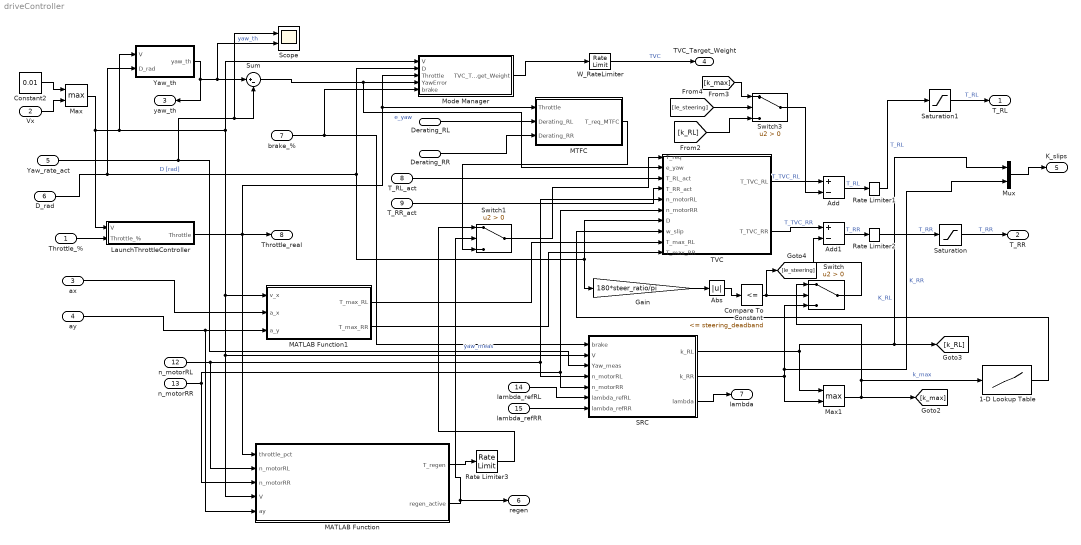
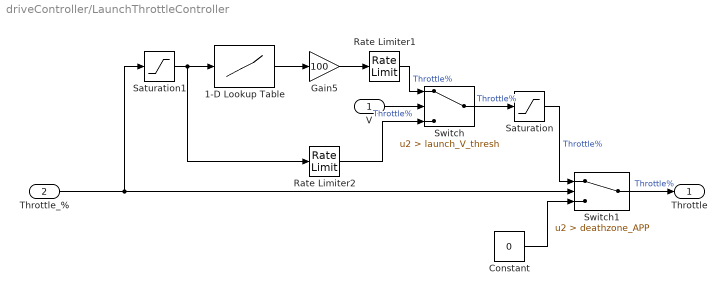
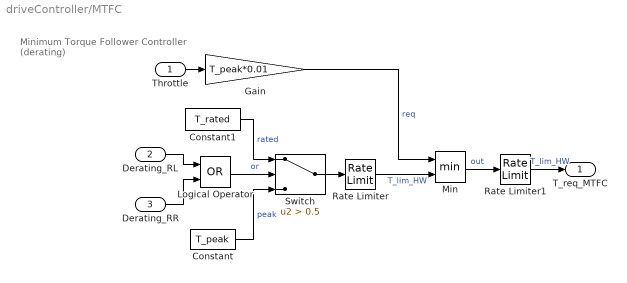
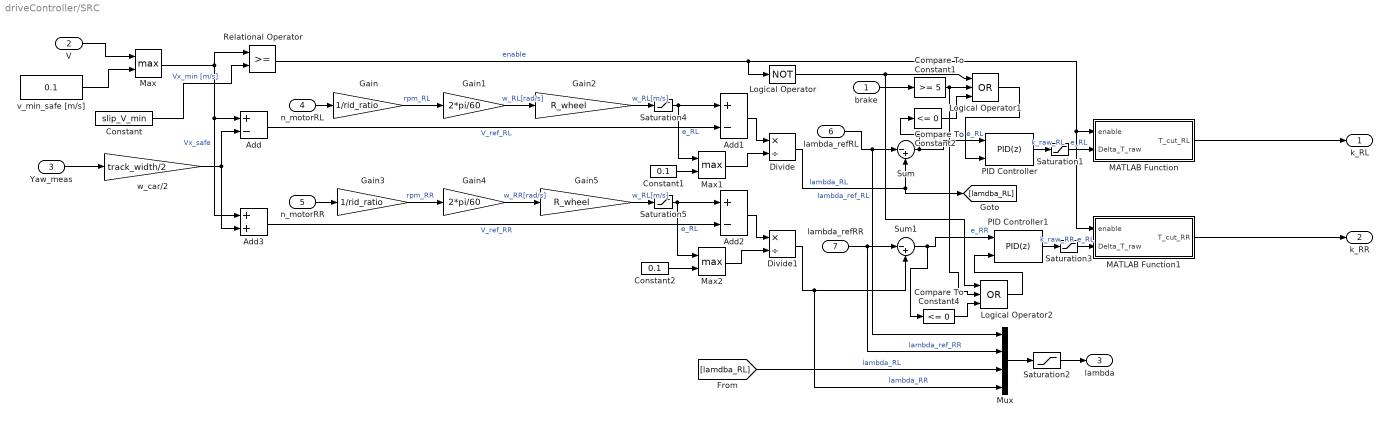
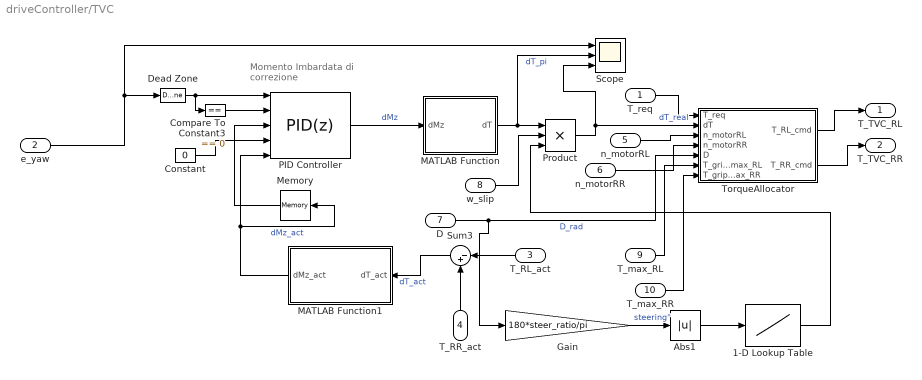
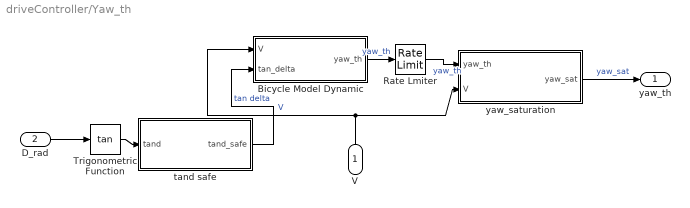
== matlab function driveController/SRC/MATLAB Function ==
function T_cut_RL = fcn(enable, Delta_T_raw)
    T_cut_RL = enable * Delta_T_raw;
end

== matlab function driveController/SRC/MATLAB Function1 ==
function T_cut_RR = fcn(enable, Delta_T_raw)
    T_cut_RR = enable * Delta_T_raw;
end

== matlab function driveController/TVC/MATLAB Function ==
function dT = fcn(dMz, R_wheel, track_width, rid_ratio, rid_eff)
    dT = dMz * R_wheel / (track_width * rid_ratio * rid_eff);
end

== matlab function driveController/TVC/MATLAB Function1 ==
function dMz_act = fcn(dT_act, track_width, R_wheel, rid_ratio, rid_eff)
    %Yaw moment (z) that the engines are currently delivering
    dMz_act = dT_act * track_width * rid_ratio * rid_eff / (2 * R_wheel);
end

== matlab function driveController/TVC/TorqueAllocator ==
function [T_RL_cmd, T_RR_cmd] = fcn(T_req, dT, n_motorRL, n_motorRR, D, ...
    V_dc_p, T_peak, T_headroom_max, T_headroom_k, T_grip_max_RL, T_grip_max_RR, rpm_safe_threshold, I_discharge_max)
    T_min = 0;
    
    % --- CALCOLO POTENZA MASSIMA (Inverter) ---
    P_max_inverter = V_dc_p * 58.33; 
    
    % --- CALCOLO LIMITI ELETTRICI (FIELD WEAKENING) ---
    w_RL = max(abs(n_motorRL) * (pi/30), 1.0); 
    w_RR = max(abs(n_motorRR) * (pi/30), 1.0);
    
    T_fw_L = P_max_inverter / w_RL;
    T_fw_R = P_max_inverter / w_RR;
    
    T_elec_max_RL = min(T_peak, T_fw_L);
    T_elec_max_RR = min(T_peak, T_fw_R);
    
    % --- LIMITI FISICI GLOBALI ---
    T_max_L = min(T_elec_max_RL, T_grip_max_RL);
    T_max_R = min(T_elec_max_RR, T_grip_max_RR);
    
    % ---  PROTEZIONE ASIMMETRIA E HEADROOM TVC ---
    T_lim_base = min(T_max_L, T_max_R);
    T_headroom = min(T_headroom_max, T_headroom_k * abs(D));
    
    T_lim_base_neg = -min(T_grip_max_RL, T_grip_max_RR); 
    
    if T_req >= 0
        T_req_eff = max(0, min(T_req, T_lim_base - T_headroom));
    else
        T_req_eff = max(T_lim_base_neg + T_headroom, min(0, T_req));
    end
    
    % ---  TEORICO TVC ---
    T_L = T_req_eff - dT;
    T_R = T_req_eff + dT;
    
    if (abs(n_motorRL) < rpm_safe_threshold) && (T_L < 0)
        T_L = 0;
    end
    if (abs(n_motorRR) < rpm_safe_threshold) && (T_R < 0)
        T_R = 0;
    end
    
    % --- LIMITAZIONE PROPORZIONALE POTENZA DC (DC Current Limit) ---
    P_req_L = max(0, T_L * w_RL);
    P_req_R = max(0, T_R * w_RR);
    P_tot_req = P_req_L + P_req_R;
    
    P_limit_dc = V_dc_p * I_discharge_max;
    
    if P_tot_req > P_limit_dc
        scale_factor = P_limit_dc / P_tot_req;
        T_L = T_L * scale_factor;
        T_R = T_R * scale_factor;
    end
    
    % --- SATURAZIONE FINALE ---
    T_RL_cmd = max(-T_grip_max_RL, min(T_max_L, T_L));
    T_RR_cmd = max(-T_grip_max_RR, min(T_max_R, T_R));
end

== matlab function driveController/Yaw_th/Bicycle Model Dynamic ==
function yaw_th = fcn(V,tan_delta,wheelbase,Kus)
% L = 1.55; %passo veicolo [m]
% yaw_th = (V / L) * tand;
%
  
yaw_th = (V / wheelbase) * tan_delta / (1 + Kus * V^2);



end

== matlab function driveController/Yaw_th/tand safe ==
function tand_safe = fcn(tand,angle_limit_d)
    soglia = tan(angle_limit_d*pi/180);  % 2° rad
    
    if abs(tand) < soglia
        tand_safe = 0;  % 
    else
        tand_safe = tand;  
    end
end

== matlab function driveController/Yaw_th/yaw_saturation ==
function yaw_sat = fcn(yaw_th, V,mu, g)
    V_calc = max(V, 0.5);
    
    yaw_max_abs = (mu * g) / V_calc;
    yaw_sat = sign(yaw_th) * min(abs(yaw_th), yaw_max_abs);
end

== matlab function driveController/MATLAB Function ==
function [T_regen, regen_active] = regen_fcn( ...
        throttle_pct, n_motorRL, n_motorRR, V, Ts, ...
        regen_T_max, regen_pedal_thr, regen_speed_min_rpm, regen_speed_crit_rpm, ...
        regen_I_peak_A, regen_I_cont_A, regen_I_peak_dur_s, ...
        regen_P_batt_max_W, V_dc, ay, ay_limit, I_charge_max)

    persistent t_elapsed_s;
    if isempty(t_elapsed_s)
        t_elapsed_s = 0.0;
    end
    speed_avg_rpm = (abs(n_motorRL) + abs(n_motorRR)) * 0.5;
    
    % ---- condizione di abilitazione regen 
    should_regen = (throttle_pct <= regen_pedal_thr) && ...
                   (speed_avg_rpm > regen_speed_crit_rpm) && ...
                   (V > 0.5);
    if ~should_regen
        t_elapsed_s = 0.0;
        T_regen = 0;
        regen_active = 0.0;
        return;
    end
    
    t_elapsed_s = t_elapsed_s + Ts;
    
    % ---- Stage 1: coppia pedal-dipendente [Nm, negativa] ----------------
    pedal_norm = throttle_pct / regen_pedal_thr;
    T_s1 = -regen_T_max * (1.0 - pedal_norm);
    
    if n_motorRL < regen_speed_min_rpm || n_motorRR < regen_speed_min_rpm
        t_elapsed_s = 0.0;
        T_regen = 0;
        regen_active = 0.0;
        return;
    end
    % ---- Stage 2: fade-out velocità -------------------------------------
    if speed_avg_rpm >= regen_speed_min_rpm
        k_vel = 1.0;
    else
        k_vel = speed_avg_rpm / regen_speed_min_rpm;
    end
    T_s2 = T_s1 * k_vel;
    
    % ---- Stage 3: limite potenza batteria (per motore = totale/2) -------
    omega_rad_s = (2.0 * pi * speed_avg_rpm) / 60.0;
    omega_safe  = max(omega_rad_s, 1.0);          
    T_P_lim     = (regen_P_batt_max_W * 0.5) / omega_safe;
    T_s3        = max(T_s2, -T_P_lim);            
    
    % --- NUOVO: INCROCIO LIMITI DI CORRENTE BMS ---
    if t_elapsed_s < regen_I_peak_dur_s
        I_lim_teorico = regen_I_peak_A;    
    else
        I_lim_teorico = regen_I_cont_A;   
    end
    
    % Sceglie il limite più severo tra la logica timer e il CAN del BMS
    I_lim_effettivo = min(I_lim_teorico, I_charge_max);
    I_lim_per_mot = I_lim_effettivo * 0.5;
    
    T_I_lim = (I_lim_per_mot * V_dc) / omega_safe;
    T_final = max(T_s3, -T_I_lim);
    
    % ---- Stage 4: limite regen x curva ----------------------------------
    k_derating_ay = max(0.0, 1.0 - (abs(ay) / ay_limit));
    T_final = T_final * k_derating_ay;
    
    % ---- output simmetrico sui due motori -------------------------------
    T_regen  = T_final;
    regen_active = 1; 
end

== matlab function driveController/MATLAB Function1 ==
function [T_max_RL, T_max_RR] = GripEstimator(v_x, a_x, a_y, mass, g, wheelbase, l_f, track_width_r,mu,h_o, R_wheel,Af, Cl, aero_bal_r, K_roll_rear, rho, rid_ratio,rid_eff, overslip_factor)
    % ---------------------------------------------------------
    % 1. CARICO BASE (Statico + Aerodinamico)
    % ---------------------------------------------------------
    Fz_stat_rear = mass * g * (l_f / wheelbase);
    
    Fz_aero_rear = 0.5 * rho * Af * Cl * (v_x^2) * aero_bal_r;
    
    Fz_base_wheel = (Fz_stat_rear + Fz_aero_rear) / 2;

   
    % 2. TRASFERIMENTI DI CARICO
    % Longitudinale: se a_x > 0 (accelerazione), il peso si sposta dietro (+)
    delta_Fz_long = 0.5 * (mass * a_x * h_o / wheelbase);
    
    % Laterale: dipende dall'accelerazione laterale a_y.
    % Convenzione: a_y < 0 per curva a destra-> peso si sposta a sinistra.
    delta_Fz_lat = (mass * a_y * h_o / track_width_r) * K_roll_rear;

    % 3. FORZE NORMALI FINALI SULLE RUOTE (Fz)
    Fz_RL = Fz_base_wheel + delta_Fz_long + delta_Fz_lat;
    Fz_RR = Fz_base_wheel + delta_Fz_long - delta_Fz_lat;

    % Prevenzione valori negativi (se la ruota interna si alza da terra, Fz = 0)
    if Fz_RL < 0
        Fz_RL = 0;
    end
    if Fz_RR < 0
        Fz_RR = 0;
    end
    

    
    % 4. CALCOLO COPPIA MASSIMA AI MOTORI
    % T = (F * R) / (tau * eff)

    % Parametri Pacejka (dal file .tir)
    Fz0 = 1112.0;
    PDX1 = 1.00347;
    PDX2 = -0.99198;

    % Calcolo mu dinamico per lato sinistro
    dfz_RL = (Fz_RL - Fz0) / Fz0;
    mu_RL = PDX1 + (PDX2 * dfz_RL);
    
    % Saturazione di sicurezza (evita mu negativi o assurdi)
    if mu_RL < 0.5; mu_RL = 0.5; end

    % Calcolo mu dinamico per lato destro
    dfz_RR = (Fz_RR - Fz0) / Fz0;
    mu_RR = PDX1 + (PDX2 * dfz_RR);
    if mu_RR < 0.5; mu_RR = 0.5; end
    
   

    % % Calcolo coppia massima ai motori usando il mu corretto
    % T_max_RL = (Fz_RL * mu_RL * R_wheel) / (rid_ratio * rid_eff);
    % T_max_RR = (Fz_RR * mu_RR * R_wheel) / (rid_ratio * rid_eff);

    % Calcolo coppia massima ai motori
     %T_max_RL = ((Fz_RL * mu_RL * R_wheel) / (rid_ratio * rid_eff)) * overslip_factor;
     %T_max_RR = ((Fz_RR * mu_RR * R_wheel) / (rid_ratio * rid_eff)) * overslip_factor;

    T_max_RL = (Fz_RL * mu * R_wheel) / (rid_ratio * rid_eff)* overslip_factor;
    T_max_RR = (Fz_RR * mu * R_wheel) / (rid_ratio * rid_eff)* overslip_factor;
end

== stateflow chart driveController/Mode Manager ==
  state IDLE_
    entry:
    TVC_Target_Weight = 0;
  note: %[brake > 0 || (Throttle < tvc_throttle_on && V <= tvc_V_off)]
  state TVC_
    entry: TVC_Target_Weight = 1;
  (default) -> IDLE_
  TVC_ -> IDLE_ : [V <= tvc_V_off]
  IDLE_ -> TVC_ : [V > tvc_V_on]
  data: TVC_Target_Weight output; V input; D input; Throttle input; YawError input; brake input; tvc_D_thresh parameter; tvc_yaw_thresh parameter; tvc_yaw_thresh_off parameter; tvc_throttle_on parameter; tvc_V_on parameter; tvc_V_off parameter; tvc_D_thresh_off parameter

/*
 * Academic License - for use in teaching, academic research, and meeting
 * course requirements at degree granting institutions only.  Not for
 * government, commercial, or other organizational use.
 *
 * File: driveController.c
 *
 * Code generated for Simulink model 'driveController'.
 *
 * Model version                  : 1.16
 * Simulink Coder version         : 26.1 (R2026a) 20-Nov-2025
 * C/C++ source code generated on : Fri Jul 31 11:03:13 2026
 *
 * Target selection: ert.tlc
 * Embedded hardware selection: ARM Compatible->ARM Cortex-M
 * Code generation objectives: Unspecified
 * Validation result: Not run
 */

#include "driveController.h"
#include <stdint.h>
#include <math.h>
#include "rt_nonfinite.h"
#include <stdbool.h>
#include "driveController_private.h"

/* Named constants for Chart: '<Root>/Mode Manager' */
#define driveController_IN_IDLE_       ((uint8_t)1U)
#define driveController_IN_TVC_        ((uint8_t)2U)
#define driveController_period         (0.01)

/* Exported block parameters */
double V_dc_p = 540.0;                 /* Variable: V_dc_p
                                        * Referenced by: '<S8>/TorqueAllocator'
                                        */

/* Block signals (default storage) */
B_driveController_T driveController_B;

/* Block states (default storage) */
DW_driveController_T driveController_DW;

/* External inputs (root inport signals with default storage) */
ExtU_driveController_T driveController_U;

/* External outputs (root outports fed by signals with default storage) */
ExtY_driveController_T driveController_Y;

/* Real-time model */
static RT_MODEL_driveController_T driveController_M_;
RT_MODEL_driveController_T *const driveController_M = &driveController_M_;
static void rate_scheduler(void);
double look1_binlcapw(double u0, const double bp0[], const double table[],
                      uint32_t maxIndex)
{
  double frac;
  double y;
  uint32_t iLeft;

  /* Column-major Lookup 1-D
     Search method: 'binary'
     Use previous index: 'off'
     Interpolation method: 'Linear point-slope'
     Extrapolation method: 'Clip'
     Use last breakpoint for index at or above upper limit: 'on'
     Remove protection against out-of-range input in generated code: 'off'
   */
  /* Prelookup - Index and Fraction
     Index Search method: 'binary'
     Extrapolation method: 'Clip'
     Use previous index: 'off'
     Use last breakpoint for index at or above upper limit: 'on'
     Remove protection against out-of-range input in generated code: 'off'
   */
  if (u0 <= bp0[0U]) {
    iLeft = 0U;
    frac = 0.0;
  } else if (u0 < bp0[maxIndex]) {
    uint32_t bpIdx;
    uint32_t iRght;

    /* Binary Search */
    bpIdx = maxIndex >> 1U;
    iLeft = 0U;
    iRght = maxIndex;
    while (iRght - iLeft > 1U) {
      if (u0 < bp0[bpIdx]) {
        iRght = bpIdx;
      } else {
        iLeft = bpIdx;
      }

      bpIdx = (iRght + iLeft) >> 1U;
    }

    frac = (u0 - bp0[iLeft]) / (bp0[iLeft + 1U] - bp0[iLeft]);
  } else {
    iLeft = maxIndex;
    frac = 0.0;
  }

  /* Column-major Interpolation 1-D
     Interpolation method: 'Linear point-slope'
     Use last breakpoint for index at or above upper limit: 'on'
     Overflow mode: 'portable wrapping'
   */
  if (iLeft == maxIndex) {
    y = table[iLeft];
  } else {
    double yL_0d0;
    yL_0d0 = table[iLeft];
    y = (table[iLeft + 1U] - yL_0d0) * frac + yL_0d0;
  }

  return y;
}

/*
 *         This function updates active task flag for each subrate.
 *         The function is called at model base rate, hence the
 *         generated code self-manages all its subrates.
 */
static void rate_scheduler(void)
{
  /* Compute which subrates run during the next base time step.  Subrates
   * are an integer multiple of the base rate counter.  Therefore, the subtask
   * counter is reset when it reaches its limit (zero means run).
   */
  (driveController_M->Timing.TaskCounters.TID[1])++;
  if ((driveController_M->Timing.TaskCounters.TID[1]) > 9) {/* Sample time: [0.01s, 0.0s] */
    driveController_M->Timing.TaskCounters.TID[1] = 0;
  }

  (driveController_M->Timing.TaskCounters.TID[2])++;
  if ((driveController_M->Timing.TaskCounters.TID[2]) > 49) {/* Sample time: [0.05s, 0.0s] */
    driveController_M->Timing.TaskCounters.TID[2] = 0;
  }
}

/* Model step function */
void driveController_step(void)
{
  double Fz_RL;
  double P_tot_req;
  double T_L;
  double T_req_eff;
  double delta_Fz_lat;
  double omega_safe;
  double rtb_Filter;
  double rtb_FilterCoefficient_l;
  double rtb_FilterCoefficient_na;
  double rtb_Integrator;
  double rtb_Integrator_c;
  double rtb_Max;
  double rtb_Saturation;
  double rtb_Saturation_g;
  double rtb_Sum;
  double rtb_Sum_h;
  double rtb_T_RL;
  double rtb_T_RR;
  double rtb_T_cut_RL;
  double rtb_Throttle_l;
  double rtb_e_RL_i;
  double speed_avg_rpm;
  double w_RL;
  double w_RR;
  double w_RR_tmp;
  int32_t rtb_TVC_Target_Weight;
  int32_t rtb_regen_active;
  bool rtb_Compare_i;
  bool rtb_LogicalOperator1;
  bool rtb_LogicalOperator2;
  bool rtb_enable;
  bool tmp;
  tmp = (driveController_M->Timing.TaskCounters.TID[1] == 0);
  if (tmp) {
    /* Gain: '<S7>/Gain2' incorporates:
     *  Gain: '<S7>/Gain'
     *  Gain: '<S7>/Gain1'
     *  Inport: '<Root>/n_motorRL'
     */
    rtb_e_RL_i = 0.06666666666666667 * driveController_U.n_motorRL *
      0.10471975511965977 * 0.2032;

    /* Saturate: '<S7>/Saturation4' */
    if (rtb_e_RL_i <= 0.0) {
      rtb_e_RL_i = 0.0;
    }

    /* End of Saturate: '<S7>/Saturation4' */

    /* MinMax: '<Root>/Max' incorporates:
     *  Constant: '<Root>/Constant2'
     *  Inport: '<Root>/Vx'
     */
    rtb_Max = fmax(0.01, driveController_U.Vx);

    /* MinMax: '<S7>/Max' incorporates:
     *  Constant: '<S7>/v_min_safe [m//s]'
     */
    rtb_Filter = fmax(rtb_Max, 0.1);

    /* Gain: '<S7>/w_car//2' incorporates:
     *  Inport: '<Root>/Yaw_rate_act'
     */
    rtb_Integrator = 0.6 * driveController_U.yaw_meas;

    /* Product: '<S7>/Divide' incorporates:
     *  Constant: '<S7>/Constant1'
     *  MinMax: '<S7>/Max1'
     *  Sum: '<S7>/Add'
     *  Sum: '<S7>/Add1'
     */
    rtb_e_RL_i = (rtb_e_RL_i - (rtb_Filter - rtb_Integrator)) / fmax(rtb_e_RL_i,
      0.1);

    /* Gain: '<S7>/Gain5' incorporates:
     *  Gain: '<S7>/Gain3'
     *  Gain: '<S7>/Gain4'
     *  Inport: '<Root>/n_motorRR'
     */
    rtb_Sum_h = 0.06666666666666667 * driveController_U.n_motorRR *
      0.10471975511965977 * 0.2032;

    /* Saturate: '<S7>/Saturation5' */
    if (rtb_Sum_h <= 0.0) {
      rtb_Sum_h = 0.0;
    }

    /* End of Saturate: '<S7>/Saturation5' */

    /* Product: '<S7>/Divide1' incorporates:
     *  Constant: '<S7>/Constant2'
     *  MinMax: '<S7>/Max2'
     *  Sum: '<S7>/Add2'
     *  Sum: '<S7>/Add3'
     */
    rtb_Sum_h = (rtb_Sum_h - (rtb_Filter + rtb_Integrator)) / fmax(rtb_Sum_h,
      0.1);

    /* Saturate: '<S7>/Saturation2' incorporates:
     *  Inport: '<Root>/lambda_refRL'
     *  Inport: '<Root>/lambda_refRR'
     */
    if (driveController_U.lambda_refRL > 1.0) {
      /* Outport: '<Root>/lambda' */
      driveController_Y.lambda[0] = 1.0;
    } else if (driveController_U.lambda_refRL < 0.0) {
      /* Outport: '<Root>/lambda' */
      driveController_Y.lambda[0] = 0.0;
    } else {
      /* Outport: '<Root>/lambda' */
      driveController_Y.lambda[0] = driveController_U.lambda_refRL;
    }

    if (driveController_U.lambda_refRR > 1.0) {
      /* Outport: '<Root>/lambda' */
      driveController_Y.lambda[1] = 1.0;
    } else if (driveController_U.lambda_refRR < 0.0) {
      /* Outport: '<Root>/lambda' */
      driveController_Y.lambda[1] = 0.0;
    } else {
      /* Outport: '<Root>/lambda' */
      driveController_Y.lambda[1] = driveController_U.lambda_refRR;
    }

    if (rtb_e_RL_i > 1.0) {
      /* Outport: '<Root>/lambda' */
      driveController_Y.lambda[2] = 1.0;
    } else if (rtb_e_RL_i < 0.0) {
      /* Outport: '<Root>/lambda' */
      driveController_Y.lambda[2] = 0.0;
    } else {
      /* Outport: '<Root>/lambda' */
      driveController_Y.lambda[2] = rtb_e_RL_i;
    }

    if (rtb_Sum_h > 1.0) {
      /* Outport: '<Root>/lambda' */
      driveController_Y.lambda[3] = 1.0;
    } else if (rtb_Sum_h < 0.0) {
      /* Outport: '<Root>/lambda' */
      driveController_Y.lambda[3] = 0.0;
    } else {
      /* Outport: '<Root>/lambda' */
      driveController_Y.lambda[3] = rtb_Sum_h;
    }

    /* End of Saturate: '<S7>/Saturation2' */

    /* Sum: '<S7>/Sum1' incorporates:
     *  Inport: '<Root>/lambda_refRR'
     */
    rtb_Sum_h -= driveController_U.lambda_refRR;

    /* RelationalOperator: '<S7>/Relational Operator' incorporates:
     *  Constant: '<S7>/Constant'
     */
    rtb_enable = (rtb_Filter >= 3.0);

    /* Logic: '<S7>/Logical Operator2' incorporates:
     *  Constant: '<S10>/Constant'
     *  Constant: '<S12>/Constant'
     *  Inport: '<Root>/brake_%'
     *  Logic: '<S7>/Logical Operator'
     *  Logic: '<S7>/Logical Operator1'
     *  RelationalOperator: '<S10>/Compare'
     *  RelationalOperator: '<S12>/Compare'
     */
    rtb_LogicalOperator1 = (!rtb_enable || (driveController_U.brake_ >= 5.0));
    rtb_LogicalOperator2 = (rtb_LogicalOperator1 || (rtb_Sum_h <= 0.0));

    /* DiscreteIntegrator: '<S103>/Integrator' */
    if (rtb_LogicalOperator2 || (driveController_DW.Integrator_PrevResetState !=
         0)) {
      driveController_DW.Integrator_DSTATE = 0.0;
    }

    /* DiscreteIntegrator: '<S98>/Filter' */
    if (rtb_LogicalOperator2 || (driveController_DW.Filter_PrevResetState != 0))
    {
      driveController_DW.Filter_DSTATE = 0.0;
    }

    /* Gain: '<S106>/Filter Coefficient' incorporates:
     *  DiscreteIntegrator: '<S98>/Filter'
     *  Gain: '<S96>/Derivative Gain'
     *  Sum: '<S98>/SumD'
     */
    rtb_Filter = (0.8 * rtb_Sum_h - driveController_DW.Filter_DSTATE) * 80.0;

    /* Sum: '<S112>/Sum' incorporates:
     *  DiscreteIntegrator: '<S103>/Integrator'
     *  Gain: '<S108>/Proportional Gain'
     */
    rtb_Integrator = (50.0 * rtb_Sum_h + driveController_DW.Integrator_DSTATE) +
      rtb_Filter;

    /* Saturate: '<S110>/Saturation' */
    if (rtb_Integrator > 25.0) {
      rtb_Integrator_c = 25.0;
    } else if (rtb_Integrator < 0.0) {
      rtb_Integrator_c = 0.0;
    } else {
      rtb_Integrator_c = rtb_Integrator;
    }

    /* End of Saturate: '<S110>/Saturation' */

    /* Sum: '<S95>/SumI4' incorporates:
     *  Gain: '<S100>/Integral Gain'
     *  Gain: '<S95>/Kb'
     *  Sum: '<S95>/SumI2'
     */
    rtb_Integrator = (rtb_Integrator_c - rtb_Integrator) * 10.0 + 13.0 *
      rtb_Sum_h;

    /* MATLAB Function: '<S7>/MATLAB Function1' incorporates:
     *  Saturate: '<S7>/Saturation3'
     */
    rtb_Integrator_c *= (double)rtb_enable;

    /* Sum: '<S7>/Sum' incorporates:
     *  Inport: '<Root>/lambda_refRL'
     */
    rtb_e_RL_i -= driveController_U.lambda_refRL;

    /* Logic: '<S7>/Logical Operator1' incorporates:
     *  Constant: '<S11>/Constant'
     *  RelationalOperator: '<S11>/Compare'
     */
    rtb_LogicalOperator1 = (rtb_LogicalOperator1 || (rtb_e_RL_i <= 0.0));

    /* DiscreteIntegrator: '<S51>/Integrator' */
    if (rtb_LogicalOperator1 || (driveController_DW.Integrator_PrevResetState_a
         != 0)) {
      driveController_DW.Integrator_DSTATE_o = 0.0;
    }

    /* DiscreteIntegrator: '<S46>/Filter' */
    if (rtb_LogicalOperator1 || (driveController_DW.Filter_PrevResetState_p != 0))
    {
      driveController_DW.Filter_DSTATE_e = 0.0;
    }

    /* Gain: '<S54>/Filter Coefficient' incorporates:
     *  DiscreteIntegrator: '<S46>/Filter'
     *  Gain: '<S44>/Derivative Gain'
     *  Sum: '<S46>/SumD'
     */
    rtb_FilterCoefficient_l = (0.8 * rtb_e_RL_i -
      driveController_DW.Filter_DSTATE_e) * 80.0;

    /* Sum: '<S60>/Sum' incorporates:
     *  DiscreteIntegrator: '<S51>/Integrator'
     *  Gain: '<S56>/Proportional Gain'
     */
    rtb_Sum_h = (50.0 * rtb_e_RL_i + driveController_DW.Integrator_DSTATE_o) +
      rtb_FilterCoefficient_l;

    /* Saturate: '<S58>/Saturation' */
    if (rtb_Sum_h > 25.0) {
      rtb_Saturation_g = 25.0;
    } else if (rtb_Sum_h < 0.0) {
      rtb_Saturation_g = 0.0;
    } else {
      rtb_Saturation_g = rtb_Sum_h;
    }

    /* End of Saturate: '<S58>/Saturation' */

    /* MATLAB Function: '<S7>/MATLAB Function' incorporates:
     *  Saturate: '<S7>/Saturation1'
     */
    rtb_T_cut_RL = (double)rtb_enable * rtb_Saturation_g;

    /* MinMax: '<Root>/Max1' */
    rtb_T_RR = fmax(rtb_T_cut_RL, rtb_Integrator_c);

    /* Abs: '<Root>/Abs' incorporates:
     *  Abs: '<S8>/Abs1'
     *  Gain: '<Root>/Gain'
     *  Inport: '<Root>/D_rad'
     */
    delta_Fz_lat = fabs(240.64227395494575 * driveController_U.Drad);

    /* RelationalOperator: '<S1>/Compare' incorporates:
     *  Abs: '<Root>/Abs'
     *  Constant: '<S1>/Constant'
     */
    rtb_enable = (delta_Fz_lat <= 2.0);

    /* Switch: '<Root>/Switch3' */
    if (rtb_enable) {
      rtb_T_RL = rtb_T_RR;
    } else {
      rtb_T_RL = rtb_T_cut_RL;
    }

    /* End of Switch: '<Root>/Switch3' */

    /* Saturate: '<S2>/Saturation1' incorporates:
     *  Inport: '<Root>/Throttle_%'
     */
    if (driveController_U.Throttle_ > 100.0) {
      /* DiscreteIntegrator: '<S155>/Filter' */
      driveController_B.Switch1 = 100.0;
    } else if (driveController_U.Throttle_ < 0.0) {
      /* DiscreteIntegrator: '<S155>/Filter' */
      driveController_B.Switch1 = 0.0;
    } else {
      /* DiscreteIntegrator: '<S155>/Filter' */
      driveController_B.Switch1 = driveController_U.Throttle_;
    }

    /* End of Saturate: '<S2>/Saturation1' */

    /* Gain: '<S2>/Gain5' incorporates:
     *  DiscreteIntegrator: '<S155>/Filter'
     *  Lookup_n-D: '<S2>/1-D Lookup Table'
     */
    omega_safe = 100.0 * look1_binlcapw(driveController_B.Switch1,
      driveController_ConstP.uDLookupTable_bp01Data,
      driveController_ConstP.uDLookupTable_tableData, 10U);

    /* RateLimiter: '<S2>/Rate Limiter1' */
    T_L = omega_safe - driveController_DW.PrevY;
    if (T_L > 10.0) {
      omega_safe = driveController_DW.PrevY + 10.0;
    } else if (T_L < -2.5) {
      omega_safe = driveController_DW.PrevY - 2.5;
    }

    driveController_DW.PrevY = omega_safe;

    /* End of RateLimiter: '<S2>/Rate Limiter1' */

    /* RateLimiter: '<S2>/Rate Limiter2' */
    T_L = driveController_B.Switch1 - driveController_DW.PrevY_j;
    if (T_L > 10.0) {
      /* DiscreteIntegrator: '<S155>/Filter' */
      driveController_B.Switch1 = driveController_DW.PrevY_j + 10.0;
    } else if (T_L < -2.5) {
      /* DiscreteIntegrator: '<S155>/Filter' */
      driveController_B.Switch1 = driveController_DW.PrevY_j - 2.5;
    }

    driveController_DW.PrevY_j = driveController_B.Switch1;

    /* End of RateLimiter: '<S2>/Rate Limiter2' */

    /* Switch: '<S2>/Switch1' incorporates:
     *  Constant: '<S2>/Constant'
     *  Inport: '<Root>/Throttle_%'
     */
    if (driveController_U.Throttle_ > 5.0) {
      /* Switch: '<S2>/Switch' */
      if (rtb_Max > 5.0) {
        /* DiscreteIntegrator: '<S155>/Filter' */
        driveController_B.Switch1 = omega_safe;
      }

      /* Saturate: '<S2>/Saturation' incorporates:
       *  Switch: '<S2>/Switch'
       */
      if (driveController_B.Switch1 > 100.0) {
        rtb_Throttle_l = 100.0;
      } else if (driveController_B.Switch1 < 0.0) {
        rtb_Throttle_l = 0.0;
      } else {
        rtb_Throttle_l = driveController_B.Switch1;
      }

      /* End of Saturate: '<S2>/Saturation' */
    } else {
      rtb_Throttle_l = 0.0;
    }

    /* End of Switch: '<S2>/Switch1' */

    /* MATLAB Function: '<Root>/MATLAB Function' incorporates:
     *  Inport: '<Root>/ay'
     *  Inport: '<Root>/n_motorRL'
     *  Inport: '<Root>/n_motorRR'
     */
    speed_avg_rpm = (fabs(driveController_U.n_motorRL) + fabs
                     (driveController_U.n_motorRR)) * 0.5;
    if (!(rtb_Throttle_l <= 5.0) || !(speed_avg_rpm > 1000.0) || !(rtb_Max > 0.5))
    {
      driveController_DW.t_elapsed_s = 0.0;
      omega_safe = 0.0;
      rtb_regen_active = 0;
    } else {
      driveController_DW.t_elapsed_s += 0.01;
      if ((driveController_U.n_motorRL < 4000.0) || (driveController_U.n_motorRR
           < 4000.0)) {
        driveController_DW.t_elapsed_s = 0.0;
        omega_safe = 0.0;
        rtb_regen_active = 0;
      } else {
        omega_safe = 6.283185307179586 * speed_avg_rpm / 60.0;
        if (speed_avg_rpm >= 4000.0) {
          speed_avg_rpm = 1.0;
        } else {
          speed_avg_rpm /= 4000.0;
        }

        if (driveController_DW.t_elapsed_s < 4.0) {
          rtb_regen_active = 21;
        } else {
          rtb_regen_active = 14;
        }

        omega_safe = fmax(fmax((1.0 - rtb_Throttle_l / 5.0) * -9.0 *
          speed_avg_rpm, -(17500.0 / omega_safe)), -((double)rtb_regen_active *
          0.5 * 540.0 / omega_safe)) * fmax(0.0, 1.0 - fabs(driveController_U.ay)
          / 15.0);
        rtb_regen_active = 1;
      }
    }

    /* End of MATLAB Function: '<Root>/MATLAB Function' */

    /* RateLimiter: '<Root>/Rate Limiter3' */
    T_L = omega_safe - driveController_DW.PrevY_p;
    if (T_L > 0.6) {
      omega_safe = driveController_DW.PrevY_p + 0.6;
    } else if (T_L < -0.2) {
      omega_safe = driveController_DW.PrevY_p - 0.2;
    }

    driveController_DW.PrevY_p = omega_safe;

    /* End of RateLimiter: '<Root>/Rate Limiter3' */

    /* Switch: '<S5>/Switch' incorporates:
     *  Constant: '<S5>/Constant'
     *  Constant: '<S5>/Constant1'
     *  Inport: '<Root>/Derating_RL'
     *  Inport: '<Root>/Derating_RR'
     *  Logic: '<S5>/Logical Operator'
     */
    if (driveController_U.Derating_RL || driveController_U.Derating_RR) {
      speed_avg_rpm = 9.8;
    } else {
      speed_avg_rpm = 21.0;
    }

    /* End of Switch: '<S5>/Switch' */

    /* RateLimiter: '<S5>/Rate Limiter' */
    T_L = speed_avg_rpm - driveController_DW.PrevY_a;
    if (T_L > 2.5) {
      speed_avg_rpm = driveController_DW.PrevY_a + 2.5;
    } else if (T_L < -2.5) {
      speed_avg_rpm = driveController_DW.PrevY_a - 2.5;
    }

    driveController_DW.PrevY_a = speed_avg_rpm;

    /* End of RateLimiter: '<S5>/Rate Limiter' */

    /* DiscreteIntegrator: '<S155>/Filter' incorporates:
     *  Gain: '<S5>/Gain'
     *  MinMax: '<S5>/Min'
     */
    driveController_B.Switch1 = fmin(0.21 * rtb_Throttle_l, speed_avg_rpm);

    /* RateLimiter: '<S5>/Rate Limiter1' */
    T_L = driveController_B.Switch1 - driveController_DW.PrevY_f;
    if (T_L > 2.5) {
      /* DiscreteIntegrator: '<S155>/Filter' */
      driveController_B.Switch1 = driveController_DW.PrevY_f + 2.5;
    } else if (T_L < -0.1) {
      /* DiscreteIntegrator: '<S155>/Filter' */
      driveController_B.Switch1 = driveController_DW.PrevY_f - 0.1;
    }

    driveController_DW.PrevY_f = driveController_B.Switch1;

    /* End of RateLimiter: '<S5>/Rate Limiter1' */

    /* Switch: '<Root>/Switch1' */
    if (rtb_regen_active > 0) {
      /* DiscreteIntegrator: '<S155>/Filter' incorporates:
       *  Switch: '<Root>/Switch1'
       */
      driveController_B.Switch1 = omega_safe;
    }

    /* End of Switch: '<Root>/Switch1' */

    /* Trigonometry: '<S9>/Trigonometric Function' incorporates:
     *  Inport: '<Root>/D_rad'
     */
    speed_avg_rpm = tan(driveController_U.Drad);

    /* MATLAB Function: '<S9>/tand safe' */
    if (fabs(speed_avg_rpm) < 0.017455064928217585) {
      speed_avg_rpm = 0.0;
    }

    /* MATLAB Function: '<S9>/Bicycle Model Dynamic' incorporates:
     *  MATLAB Function: '<Root>/MATLAB Function1'
     *  MATLAB Function: '<S9>/tand safe'
     */
    Fz_RL = rtb_Max * rtb_Max;
    omega_safe = rtb_Max / 1.55 * speed_avg_rpm / (Fz_RL * 0.03 + 1.0);

    /* RateLimiter: '<S9>/Rate Lmiter' */
    T_L = omega_safe - driveController_DW.PrevY_e;
    if (T_L > driveController_period) {
      omega_safe = driveController_DW.PrevY_e + driveController_period;
    } else if (T_L < -0.01) {
      omega_safe = driveController_DW.PrevY_e - 0.01;
    }

    driveController_DW.PrevY_e = omega_safe;

    /* End of RateLimiter: '<S9>/Rate Lmiter' */

    /* MATLAB Function: '<S9>/yaw_saturation' */
    if (rtIsNaN(omega_safe)) {
      speed_avg_rpm = (rtNaN);
    } else if (omega_safe < 0.0) {
      speed_avg_rpm = -1.0;
    } else {
      speed_avg_rpm = (omega_safe > 0.0);
    }

    omega_safe = fmin(fabs(omega_safe), 14.715 / fmax(rtb_Max, 0.5)) *
      speed_avg_rpm;

    /* End of MATLAB Function: '<S9>/yaw_saturation' */

    /* Sum: '<Root>/Sum' incorporates:
     *  Inport: '<Root>/Yaw_rate_act'
     */
    speed_avg_rpm = omega_safe - driveController_U.yaw_meas;

    /* DeadZone: '<S8>/Dead Zone' */
    if (speed_avg_rpm > 0.03) {
      speed_avg_rpm -= 0.03;
    } else if (speed_avg_rpm >= -0.03) {
      speed_avg_rpm = 0.0;
    } else {
      speed_avg_rpm -= -0.03;
    }

    /* End of DeadZone: '<S8>/Dead Zone' */

    /* RelationalOperator: '<S121>/Compare' incorporates:
     *  Constant: '<S121>/Constant'
     */
    rtb_Compare_i = (speed_avg_rpm == 0.0);

    /* DiscreteIntegrator: '<S160>/Integrator' incorporates:
     *  Memory: '<S8>/Memory'
     */
    if (driveController_DW.Integrator_IC_LOADING != 0) {
      driveController_DW.Integrator_DSTATE_a =
        driveController_DW.Memory_PreviousInput;
    }

    if (rtb_Compare_i || (driveController_DW.Integrator_PrevResetState_g != 0))
    {
      driveController_DW.Integrator_DSTATE_a =
        driveController_DW.Memory_PreviousInput;
    }

    /* DiscreteIntegrator: '<S155>/Filter' */
    if (rtb_Compare_i || (driveController_DW.Filter_PrevResetState_h != 0)) {
      driveController_DW.Filter_DSTATE_g = driveController_ConstB.Constant;
    }

    /* Gain: '<S163>/Filter Coefficient' incorporates:
     *  DiscreteIntegrator: '<S155>/Filter'
     *  Gain: '<S153>/Derivative Gain'
     *  Sum: '<S155>/SumD'
     */
    rtb_FilterCoefficient_na = (0.8 * speed_avg_rpm -
      driveController_DW.Filter_DSTATE_g) * 30.0;

    /* Sum: '<S169>/Sum' incorporates:
     *  DiscreteIntegrator: '<S160>/Integrator'
     *  Gain: '<S165>/Proportional Gain'
     */
    rtb_Sum = (700.0 * speed_avg_rpm + driveController_DW.Integrator_DSTATE_a) +
      rtb_FilterCoefficient_na;

    /* Saturate: '<S167>/Saturation' */
    if (rtb_Sum > 600.0) {
      rtb_Saturation = 600.0;
    } else if (rtb_Sum < -600.0) {
      rtb_Saturation = -600.0;
    } else {
      rtb_Saturation = rtb_Sum;
    }

    /* End of Saturate: '<S167>/Saturation' */

    /* Product: '<S8>/Product' incorporates:
     *  Lookup_n-D: '<Root>/1-D Lookup Table'
     *  Lookup_n-D: '<S8>/1-D Lookup Table'
     *  MATLAB Function: '<S8>/MATLAB Function'
     *  Saturate: '<Root>/Saturation'
     */
    driveController_B.dT_real = rtb_Saturation * 0.2032 / 14.4 * look1_binlcapw
      (rtb_T_RR, driveController_ConstP.uDLookupTable_bp01Data_b,
       driveController_ConstP.uDLookupTable_tableData_j, 2U) * look1_binlcapw
      (delta_Fz_lat, driveController_ConstP.uDLookupTable_bp01Data_m,
       driveController_ConstP.uDLookupTable_tableData_b, 2U);

    /* MATLAB Function: '<Root>/MATLAB Function1' incorporates:
     *  Inport: '<Root>/ax'
     *  Inport: '<Root>/ay'
     */
    delta_Fz_lat = 320.0 * driveController_U.ay * 0.35 / 1.2 * 0.45;
    T_L = (Fz_RL * 0.6737500000000001 * 0.5 + 1569.6000000000001) / 2.0 + 320.0 *
      driveController_U.ax * 0.35 / 1.55 * 0.5;
    Fz_RL = T_L + delta_Fz_lat;
    delta_Fz_lat = T_L - delta_Fz_lat;
    if (Fz_RL < 0.0) {
      Fz_RL = 0.0;
    }

    if (delta_Fz_lat < 0.0) {
      delta_Fz_lat = 0.0;
    }

    driveController_B.T_max_RL = Fz_RL * 1.5 * 0.2032 / 12.0 * 1.01;
    driveController_B.T_max_RR = delta_Fz_lat * 1.5 * 0.2032 / 12.0 * 1.01;
  }

  if (driveController_M->Timing.TaskCounters.TID[2] == 0) {
    /* MATLAB Function: '<S8>/TorqueAllocator' incorporates:
     *  Inport: '<Root>/D_rad'
     *  Inport: '<Root>/n_motorRL'
     *  Inport: '<Root>/n_motorRR'
     */
    Fz_RL = V_dc_p * 58.33;
    P_tot_req = fabs(driveController_U.n_motorRL);
    w_RL = fmax(P_tot_req * 0.10471975511965977, 1.0);
    w_RR_tmp = fabs(driveController_U.n_motorRR);
    w_RR = fmax(w_RR_tmp * 0.10471975511965977, 1.0);
    delta_Fz_lat = fmin(fmin(21.0, Fz_RL / w_RL), driveController_B.T_max_RL);
    Fz_RL = fmin(fmin(21.0, Fz_RL / w_RR), driveController_B.T_max_RR);
    if (driveController_B.Switch1 >= 0.0) {
      T_req_eff = fmax(0.0, fmin(driveController_B.Switch1, fmin(delta_Fz_lat,
        Fz_RL) - fmin(4.5, 8.0 * fabs(driveController_U.Drad))));
    } else {
      T_req_eff = fmax(fmin(4.5, 8.0 * fabs(driveController_U.Drad)) + -fmin
                       (driveController_B.T_max_RL, driveController_B.T_max_RR),
                       fmin(0.0, driveController_B.Switch1));
    }

    T_L = T_req_eff - driveController_B.dT_real;
    T_req_eff += driveController_B.dT_real;
    if ((P_tot_req < 100.0) && (T_L < 0.0)) {
      T_L = 0.0;
    }

    if ((w_RR_tmp < 100.0) && (T_req_eff < 0.0)) {
      T_req_eff = 0.0;
    }

    P_tot_req = fmax(0.0, T_L * w_RL) + fmax(0.0, T_req_eff * w_RR);
    w_RL = V_dc_p * 80.0;
    if (P_tot_req > w_RL) {
      P_tot_req = w_RL / P_tot_req;
      T_L *= P_tot_req;
      T_req_eff *= P_tot_req;
    }

    driveController_B.T_RL_cmd = fmax(-driveController_B.T_max_RL, fmin
      (delta_Fz_lat, T_L));
    driveController_B.T_RR_cmd = fmax(-driveController_B.T_max_RR, fmin(Fz_RL,
      T_req_eff));

    /* End of MATLAB Function: '<S8>/TorqueAllocator' */
  }

  /* MATLAB Function: '<S8>/MATLAB Function1' incorporates:
   *  Inport: '<Root>/T_RL_act'
   *  Inport: '<Root>/T_RR_act'
   *  Sum: '<S8>/Sum3'
   */
  driveController_DW.Memory_PreviousInput = (driveController_U.T_RR_act -
    driveController_U.T_RL_act) * 1.2 * 15.0 * 0.8 / 0.4064;
  if (tmp) {
    /* Sum: '<Root>/Add' */
    rtb_T_RL = driveController_B.T_RL_cmd - rtb_T_RL;

    /* RateLimiter: '<Root>/Rate Limiter1' */
    T_L = rtb_T_RL - driveController_DW.PrevY_c;
    if (T_L > 1.0) {
      rtb_T_RL = driveController_DW.PrevY_c + 1.0;
    } else if (T_L < -5.0) {
      rtb_T_RL = driveController_DW.PrevY_c - 5.0;
    }

    driveController_DW.PrevY_c = rtb_T_RL;

    /* End of RateLimiter: '<Root>/Rate Limiter1' */

    /* Saturate: '<Root>/Saturation1' */
    if (rtb_T_RL > 21.0) {
      /* Outport: '<Root>/T_RL' */
      driveController_Y.T_RL = 21.0;
    } else if (rtb_T_RL < -9.0) {
      /* Outport: '<Root>/T_RL' */
      driveController_Y.T_RL = -9.0;
    } else {
      /* Outport: '<Root>/T_RL' */
      driveController_Y.T_RL = rtb_T_RL;
    }

    /* End of Saturate: '<Root>/Saturation1' */

    /* Switch: '<Root>/Switch' */
    if (!rtb_enable) {
      rtb_T_RR = rtb_Integrator_c;
    }

    /* Sum: '<Root>/Add1' incorporates:
     *  Switch: '<Root>/Switch'
     */
    rtb_T_RR = driveController_B.T_RR_cmd - rtb_T_RR;

    /* RateLimiter: '<Root>/Rate Limiter2' */
    T_L = rtb_T_RR - driveController_DW.PrevY_i;
    if (T_L > 1.0) {
      rtb_T_RR = driveController_DW.PrevY_i + 1.0;
    } else if (T_L < -5.0) {
      rtb_T_RR = driveController_DW.PrevY_i - 5.0;
    }

    driveController_DW.PrevY_i = rtb_T_RR;

    /* End of RateLimiter: '<Root>/Rate Limiter2' */

    /* Saturate: '<Root>/Saturation' */
    if (rtb_T_RR > 21.0) {
      /* Outport: '<Root>/T_RR' */
      driveController_Y.T_RR = 21.0;
    } else if (rtb_T_RR < -9.0) {
      /* Outport: '<Root>/T_RR' */
      driveController_Y.T_RR = -9.0;
    } else {
      /* Outport: '<Root>/T_RR' */
      driveController_Y.T_RR = rtb_T_RR;
    }

    /* End of Saturate: '<Root>/Saturation' */

    /* Chart: '<Root>/Mode Manager' */
    if (driveController_DW.is_active_c30_driveController == 0) {
      driveController_DW.is_active_c30_driveController = 1U;
      driveController_DW.is_c30_driveController = driveController_IN_IDLE_;
      rtb_TVC_Target_Weight = 0;
    } else if (driveController_DW.is_c30_driveController ==
               driveController_IN_IDLE_) {
      rtb_TVC_Target_Weight = 0;
      if (rtb_Max > 4.0) {
        driveController_DW.is_c30_driveController = driveController_IN_TVC_;
        rtb_TVC_Target_Weight = 1;
      }
    } else {
      /* case IN_TVC_: */
      rtb_TVC_Target_Weight = 1;
      if (rtb_Max <= 2.0) {
        driveController_DW.is_c30_driveController = driveController_IN_IDLE_;
        rtb_TVC_Target_Weight = 0;
      }
    }

    /* End of Chart: '<Root>/Mode Manager' */

    /* RateLimiter: '<Root>/W_RateLimiter' */
    T_L = (double)rtb_TVC_Target_Weight - driveController_DW.PrevY_ck;
    if (T_L > 0.02) {
      /* RateLimiter: '<Root>/W_RateLimiter' */
      driveController_DW.PrevY_ck += 0.02;
    } else if (T_L < -0.02) {
      /* RateLimiter: '<Root>/W_RateLimiter' */
      driveController_DW.PrevY_ck -= 0.02;
    } else {
      /* RateLimiter: '<Root>/W_RateLimiter' */
      driveController_DW.PrevY_ck = rtb_TVC_Target_Weight;
    }

    /* End of RateLimiter: '<Root>/W_RateLimiter' */

    /* Outport: '<Root>/TVC_Target_Weight' */
    driveController_Y.TVC_Target_Weight = driveController_DW.PrevY_ck;

    /* Outport: '<Root>/yaw_th' */
    driveController_Y.yaw_th = omega_safe;

    /* Outport: '<Root>/regen' */
    driveController_Y.regen = rtb_regen_active;

    /* Outport: '<Root>/Throttle_real' */
    driveController_Y.Throttle_real = rtb_Throttle_l;

    /* Outport: '<Root>/K_slips' */
    driveController_Y.K_slips[0] = rtb_T_cut_RL;
    driveController_Y.K_slips[1] = rtb_Integrator_c;

    /* Update for DiscreteIntegrator: '<S103>/Integrator' */
    driveController_DW.Integrator_DSTATE += 0.01 * rtb_Integrator;
    if (driveController_DW.Integrator_DSTATE > 25.0) {
      driveController_DW.Integrator_DSTATE = 25.0;
    } else if (driveController_DW.Integrator_DSTATE < 0.0) {
      driveController_DW.Integrator_DSTATE = 0.0;
    }

    driveController_DW.Integrator_PrevResetState = (int8_t)rtb_LogicalOperator2;

    /* Update for DiscreteIntegrator: '<S98>/Filter' incorporates:
     *  DiscreteIntegrator: '<S103>/Integrator'
     */
    driveController_DW.Filter_DSTATE += 0.01 * rtb_Filter;
    driveController_DW.Filter_PrevResetState = (int8_t)rtb_LogicalOperator2;

    /* Update for DiscreteIntegrator: '<S51>/Integrator' incorporates:
     *  Gain: '<S43>/Kb'
     *  Gain: '<S48>/Integral Gain'
     *  Sum: '<S43>/SumI2'
     *  Sum: '<S43>/SumI4'
     */
    driveController_DW.Integrator_DSTATE_o += ((rtb_Saturation_g - rtb_Sum_h) *
      10.0 + 13.0 * rtb_e_RL_i) * 0.01;
    if (driveController_DW.Integrator_DSTATE_o > 25.0) {
      driveController_DW.Integrator_DSTATE_o = 25.0;
    } else if (driveController_DW.Integrator_DSTATE_o < 0.0) {
      driveController_DW.Integrator_DSTATE_o = 0.0;
    }

    driveController_DW.Integrator_PrevResetState_a = (int8_t)
      rtb_LogicalOperator1;

    /* Update for DiscreteIntegrator: '<S46>/Filter' incorporates:
     *  DiscreteIntegrator: '<S51>/Integrator'
     */
    driveController_DW.Filter_DSTATE_e += 0.01 * rtb_FilterCoefficient_l;
    driveController_DW.Filter_PrevResetState_p = (int8_t)rtb_LogicalOperator1;

    /* Update for DiscreteIntegrator: '<S160>/Integrator' incorporates:
     *  Gain: '<S152>/Kb'
     *  Gain: '<S157>/Integral Gain'
     *  Gain: '<S171>/Kt'
     *  Sum: '<S152>/SumI2'
     *  Sum: '<S152>/SumI4'
     *  Sum: '<S171>/SumI3'
     *  Sum: '<S172>/SumI1'
     */
    driveController_DW.Integrator_IC_LOADING = 0U;
    driveController_DW.Integrator_DSTATE_a +=
      (((driveController_DW.Memory_PreviousInput - rtb_Saturation) * 7.0 + 30.0 *
        speed_avg_rpm) + (rtb_Saturation - rtb_Sum) * 4.0) * 0.01;
    driveController_DW.Integrator_PrevResetState_g = (int8_t)rtb_Compare_i;

    /* Update for DiscreteIntegrator: '<S155>/Filter' incorporates:
     *  DiscreteIntegrator: '<S160>/Integrator'
     */
    driveController_DW.Filter_DSTATE_g += 0.01 * rtb_FilterCoefficient_na;
    driveController_DW.Filter_PrevResetState_h = (int8_t)rtb_Compare_i;
  }

  rate_scheduler();
}
